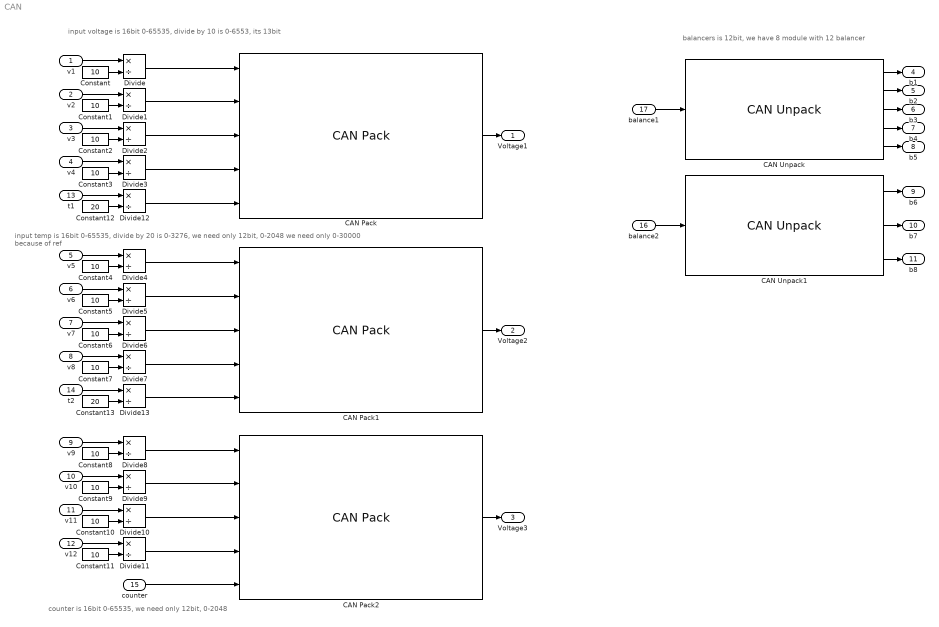
/*
 * File: CAN.c
 *
 * Code generated for Simulink model 'CAN'.
 *
 * Model version                  : 1.10
 * Simulink Coder version         : 9.3 (R2020a) 18-Nov-2019
 * C/C++ source code generated on : Tue Jan 10 13:24:14 2023
 *
 * Target selection: ert.tlc
 * Embedded hardware selection: Microchip->PIC18
 * Code generation objectives: Unspecified
 * Validation result: Not run
 */

#include "CAN.h"
#include "CAN_private.h"

/* Block signals (default storage) */
B_CAN_T CAN_B;

/* Block states (default storage) */
DW_CAN_T CAN_DW;

/* External inputs (root inport signals with default storage) */
ExtU_CAN_T CAN_U;

/* External outputs (root outports fed by signals with default storage) */
ExtY_CAN_T CAN_Y;

/* Real-time model */
RT_MODEL_CAN_T CAN_M_;
RT_MODEL_CAN_T *const CAN_M = &CAN_M_;

/* Model step function */
void CAN_step(void)
{
  /* Product: '<Root>/Divide' incorporates:
   *  Constant: '<Root>/Constant'
   *  Inport: '<Root>/v1'
   */
  CAN_B.Divide = CAN_U.v1 / 10U;

  /* Product: '<Root>/Divide1' incorporates:
   *  Constant: '<Root>/Constant1'
   *  Inport: '<Root>/v2'
   */
  CAN_B.Divide1 = CAN_U.v2 / 10U;

  /* Product: '<Root>/Divide2' incorporates:
   *  Constant: '<Root>/Constant2'
   *  Inport: '<Root>/v3'
   */
  CAN_B.Divide2 = CAN_U.v3 / 10U;

  /* Product: '<Root>/Divide3' incorporates:
   *  Constant: '<Root>/Constant3'
   *  Inport: '<Root>/v4'
   */
  CAN_B.Divide3 = CAN_U.v4 / 10U;

  /* Product: '<Root>/Divide12' incorporates:
   *  Constant: '<Root>/Constant12'
   *  Inport: '<Root>/t1'
   */
  CAN_B.Divide12 = CAN_U.t1 / 20U;

  /* S-Function (scanpack): '<Root>/CAN Pack' incorporates:
   *  Outport: '<Root>/Voltage1'
   */
  /* S-Function (scanpack): '<Root>/CAN Pack' */
  CAN_Y.Voltage1.ID = 0U;
  CAN_Y.Voltage1.Length = 8U;
  CAN_Y.Voltage1.Extended = 0U;
  CAN_Y.Voltage1.Remote = 0;
  CAN_Y.Voltage1.Data[0] = 0;
  CAN_Y.Voltage1.Data[1] = 0;
  CAN_Y.Voltage1.Data[2] = 0;
  CAN_Y.Voltage1.Data[3] = 0;
  CAN_Y.Voltage1.Data[4] = 0;
  CAN_Y.Voltage1.Data[5] = 0;
  CAN_Y.Voltage1.Data[6] = 0;
  CAN_Y.Voltage1.Data[7] = 0;

  {
    /* --------------- START Packing signal 0 ------------------
     *  startBit                = 0
     *  length                  = 13
     *  desiredSignalByteLayout = LITTLEENDIAN
     *  dataType                = UNSIGNED
     *  factor                  = 1.0
     *  offset                  = 0.0
     *  minimum                 = 0.0
     *  maximum                 = 0.0
     * -----------------------------------------------------------------------*/
    {
      uint32_T packingValue = 0;

      {
        uint32_T result = (uint32_T) (CAN_B.Divide);

        /* no scaling required */
        packingValue = result;
      }

      {
        uint16_T packedValue;
        if (packingValue > (uint16_T)(8191)) {
          packedValue = (uint16_T) 8191;
        } else {
          packedValue = (uint16_T) (packingValue);
        }

        {
          {
            CAN_Y.Voltage1.Data[0] = CAN_Y.Voltage1.Data[0] | (uint8_T)
              ((uint16_T)(packedValue & (uint16_T)0xFFU));
            CAN_Y.Voltage1.Data[1] = CAN_Y.Voltage1.Data[1] | (uint8_T)
              ((uint16_T)((uint16_T)(packedValue & (uint16_T)0x1F00U) >> 8));
          }
        }
      }
    }

    /* --------------- START Packing signal 1 ------------------
     *  startBit                = 13
     *  length                  = 13
     *  desiredSignalByteLayout = LITTLEENDIAN
     *  dataType                = UNSIGNED
     *  factor                  = 1.0
     *  offset                  = 0.0
     *  minimum                 = 0.0
     *  maximum                 = 0.0
     * -----------------------------------------------------------------------*/
    {
      uint32_T packingValue = 0;

      {
        uint32_T result = (uint32_T) (CAN_B.Divide1);

        /* no scaling required */
        packingValue = result;
      }

      {
        uint16_T packedValue;
        if (packingValue > (uint16_T)(8191)) {
          packedValue = (uint16_T) 8191;
        } else {
          packedValue = (uint16_T) (packingValue);
        }

        {
          {
            CAN_Y.Voltage1.Data[1] = CAN_Y.Voltage1.Data[1] | (uint8_T)
              ((uint16_T)((uint16_T)(packedValue & (uint16_T)0x7U) << 5));
            CAN_Y.Voltage1.Data[2] = CAN_Y.Voltage1.Data[2] | (uint8_T)
              ((uint16_T)((uint16_T)(packedValue & (uint16_T)0x7F8U) >> 3));
            CAN_Y.Voltage1.Data[3] = CAN_Y.Voltage1.Data[3] | (uint8_T)
              ((uint16_T)((uint16_T)(packedValue & (uint16_T)0x1800U) >> 11));
          }
        }
      }
    }

    /* --------------- START Packing signal 2 ------------------
     *  startBit                = 26
     *  length                  = 13
     *  desiredSignalByteLayout = LITTLEENDIAN
     *  dataType                = UNSIGNED
     *  factor                  = 1.0
     *  offset                  = 0.0
     *  minimum                 = 0.0
     *  maximum                 = 0.0
     * -----------------------------------------------------------------------*/
    {
      uint32_T packingValue = 0;

      {
        uint32_T result = (uint32_T) (CAN_B.Divide2);

        /* no scaling required */
        packingValue = result;
      }

      {
        uint16_T packedValue;
        if (packingValue > (uint16_T)(8191)) {
          packedValue = (uint16_T) 8191;
        } else {
          packedValue = (uint16_T) (packingValue);
        }

        {
          {
            CAN_Y.Voltage1.Data[3] = CAN_Y.Voltage1.Data[3] | (uint8_T)
              ((uint16_T)((uint16_T)(packedValue & (uint16_T)0x3FU) << 2));
            CAN_Y.Voltage1.Data[4] = CAN_Y.Voltage1.Data[4] | (uint8_T)
              ((uint16_T)((uint16_T)(packedValue & (uint16_T)0x1FC0U) >> 6));
          }
        }
      }
    }

    /* --------------- START Packing signal 3 ------------------
     *  startBit                = 39
     *  length                  = 13
     *  desiredSignalByteLayout = LITTLEENDIAN
     *  dataType                = UNSIGNED
     *  factor                  = 1.0
     *  offset                  = 0.0
     *  minimum                 = 0.0
     *  maximum                 = 0.0
     * -----------------------------------------------------------------------*/
    {
      uint32_T packingValue = 0;

      {
        uint32_T result = (uint32_T) (CAN_B.Divide3);

        /* no scaling required */
        packingValue = result;
      }

      {
        uint16_T packedValue;
        if (packingValue > (uint16_T)(8191)) {
          packedValue = (uint16_T) 8191;
        } else {
          packedValue = (uint16_T) (packingValue);
        }

        {
          {
            CAN_Y.Voltage1.Data[4] = CAN_Y.Voltage1.Data[4] | (uint8_T)
              ((uint16_T)((uint16_T)(packedValue & (uint16_T)0x1U) << 7));
            CAN_Y.Voltage1.Data[5] = CAN_Y.Voltage1.Data[5] | (uint8_T)
              ((uint16_T)((uint16_T)(packedValue & (uint16_T)0x1FEU) >> 1));
            CAN_Y.Voltage1.Data[6] = CAN_Y.Voltage1.Data[6] | (uint8_T)
              ((uint16_T)((uint16_T)(packedValue & (uint16_T)0x1E00U) >> 9));
          }
        }
      }
    }

    /* --------------- START Packing signal 4 ------------------
     *  startBit                = 52
     *  length                  = 12
     *  desiredSignalByteLayout = LITTLEENDIAN
     *  dataType                = UNSIGNED
     *  factor                  = 1.0
     *  offset                  = 0.0
     *  minimum                 = 0.0
     *  maximum                 = 0.0
     * -----------------------------------------------------------------------*/
    {
      uint32_T packingValue = 0;

      {
        uint32_T result = (uint32_T) (CAN_B.Divide12);

        /* no scaling required */
        packingValue = result;
      }

      {
        uint16_T packedValue;
        if (packingValue > (uint16_T)(4095)) {
          packedValue = (uint16_T) 4095;
        } else {
          packedValue = (uint16_T) (packingValue);
        }

        {
          {
            CAN_Y.Voltage1.Data[6] = CAN_Y.Voltage1.Data[6] | (uint8_T)
              ((uint16_T)((uint16_T)(packedValue & (uint16_T)0xFU) << 4));
            CAN_Y.Voltage1.Data[7] = CAN_Y.Voltage1.Data[7] | (uint8_T)
              ((uint16_T)((uint16_T)(packedValue & (uint16_T)0xFF0U) >> 4));
          }
        }
      }
    }
  }

  /* Product: '<Root>/Divide4' incorporates:
   *  Constant: '<Root>/Constant4'
   *  Inport: '<Root>/v5'
   */
  CAN_B.Divide4 = CAN_U.v5 / 10U;

  /* Product: '<Root>/Divide5' incorporates:
   *  Constant: '<Root>/Constant5'
   *  Inport: '<Root>/v6'
   */
  CAN_B.Divide5 = CAN_U.v6 / 10U;

  /* Product: '<Root>/Divide6' incorporates:
   *  Constant: '<Root>/Constant6'
   *  Inport: '<Root>/v7'
   */
  CAN_B.Divide6 = CAN_U.v7 / 10U;

  /* Product: '<Root>/Divide7' incorporates:
   *  Constant: '<Root>/Constant7'
   *  Inport: '<Root>/v8'
   */
  CAN_B.Divide7 = CAN_U.v8 / 10U;

  /* Product: '<Root>/Divide13' incorporates:
   *  Constant: '<Root>/Constant13'
   *  Inport: '<Root>/t2'
   */
  CAN_B.Divide13 = CAN_U.t2 / 20U;

  /* S-Function (scanpack): '<Root>/CAN Pack1' incorporates:
   *  Outport: '<Root>/Voltage2'
   */
  /* S-Function (scanpack): '<Root>/CAN Pack1' */
  CAN_Y.Voltage2.ID = 0U;
  CAN_Y.Voltage2.Length = 8U;
  CAN_Y.Voltage2.Extended = 0U;
  CAN_Y.Voltage2.Remote = 0;
  CAN_Y.Voltage2.Data[0] = 0;
  CAN_Y.Voltage2.Data[1] = 0;
  CAN_Y.Voltage2.Data[2] = 0;
  CAN_Y.Voltage2.Data[3] = 0;
  CAN_Y.Voltage2.Data[4] = 0;
  CAN_Y.Voltage2.Data[5] = 0;
  CAN_Y.Voltage2.Data[6] = 0;
  CAN_Y.Voltage2.Data[7] = 0;

  {
    /* --------------- START Packing signal 0 ------------------
     *  startBit                = 0
     *  length                  = 13
     *  desiredSignalByteLayout = LITTLEENDIAN
     *  dataType                = UNSIGNED
     *  factor                  = 1.0
     *  offset                  = 0.0
     *  minimum                 = 0.0
     *  maximum                 = 0.0
     * -----------------------------------------------------------------------*/
    {
      uint32_T packingValue = 0;

      {
        uint32_T result = (uint32_T) (CAN_B.Divide4);

        /* no scaling required */
        packingValue = result;
      }

      {
        uint16_T packedValue;
        if (packingValue > (uint16_T)(8191)) {
          packedValue = (uint16_T) 8191;
        } else {
          packedValue = (uint16_T) (packingValue);
        }

        {
          {
            CAN_Y.Voltage2.Data[0] = CAN_Y.Voltage2.Data[0] | (uint8_T)
              ((uint16_T)(packedValue & (uint16_T)0xFFU));
            CAN_Y.Voltage2.Data[1] = CAN_Y.Voltage2.Data[1] | (uint8_T)
              ((uint16_T)((uint16_T)(packedValue & (uint16_T)0x1F00U) >> 8));
          }
        }
      }
    }

    /* --------------- START Packing signal 1 ------------------
     *  startBit                = 13
     *  length                  = 13
     *  desiredSignalByteLayout = LITTLEENDIAN
     *  dataType                = UNSIGNED
     *  factor                  = 1.0
     *  offset                  = 0.0
     *  minimum                 = 0.0
     *  maximum                 = 0.0
     * -----------------------------------------------------------------------*/
    {
      uint32_T packingValue = 0;

      {
        uint32_T result = (uint32_T) (CAN_B.Divide5);

        /* no scaling required */
        packingValue = result;
      }

      {
        uint16_T packedValue;
        if (packingValue > (uint16_T)(8191)) {
          packedValue = (uint16_T) 8191;
        } else {
          packedValue = (uint16_T) (packingValue);
        }

        {
          {
            CAN_Y.Voltage2.Data[1] = CAN_Y.Voltage2.Data[1] | (uint8_T)
              ((uint16_T)((uint16_T)(packedValue & (uint16_T)0x7U) << 5));
            CAN_Y.Voltage2.Data[2] = CAN_Y.Voltage2.Data[2] | (uint8_T)
              ((uint16_T)((uint16_T)(packedValue & (uint16_T)0x7F8U) >> 3));
            CAN_Y.Voltage2.Data[3] = CAN_Y.Voltage2.Data[3] | (uint8_T)
              ((uint16_T)((uint16_T)(packedValue & (uint16_T)0x1800U) >> 11));
          }
        }
      }
    }

    /* --------------- START Packing signal 2 ------------------
     *  startBit                = 26
     *  length                  = 13
     *  desiredSignalByteLayout = LITTLEENDIAN
     *  dataType                = UNSIGNED
     *  factor                  = 1.0
     *  offset                  = 0.0
     *  minimum                 = 0.0
     *  maximum                 = 0.0
     * -----------------------------------------------------------------------*/
    {
      uint32_T packingValue = 0;

      {
        uint32_T result = (uint32_T) (CAN_B.Divide6);

        /* no scaling required */
        packingValue = result;
      }

      {
        uint16_T packedValue;
        if (packingValue > (uint16_T)(8191)) {
          packedValue = (uint16_T) 8191;
        } else {
          packedValue = (uint16_T) (packingValue);
        }

        {
          {
            CAN_Y.Voltage2.Data[3] = CAN_Y.Voltage2.Data[3] | (uint8_T)
              ((uint16_T)((uint16_T)(packedValue & (uint16_T)0x3FU) << 2));
            CAN_Y.Voltage2.Data[4] = CAN_Y.Voltage2.Data[4] | (uint8_T)
              ((uint16_T)((uint16_T)(packedValue & (uint16_T)0x1FC0U) >> 6));
          }
        }
      }
    }

    /* --------------- START Packing signal 3 ------------------
     *  startBit                = 39
     *  length                  = 13
     *  desiredSignalByteLayout = LITTLEENDIAN
     *  dataType                = UNSIGNED
     *  factor                  = 1.0
     *  offset                  = 0.0
     *  minimum                 = 0.0
     *  maximum                 = 0.0
     * -----------------------------------------------------------------------*/
    {
      uint32_T packingValue = 0;

      {
        uint32_T result = (uint32_T) (CAN_B.Divide7);

        /* no scaling required */
        packingValue = result;
      }

      {
        uint16_T packedValue;
        if (packingValue > (uint16_T)(8191)) {
          packedValue = (uint16_T) 8191;
        } else {
          packedValue = (uint16_T) (packingValue);
        }

        {
          {
            CAN_Y.Voltage2.Data[4] = CAN_Y.Voltage2.Data[4] | (uint8_T)
              ((uint16_T)((uint16_T)(packedValue & (uint16_T)0x1U) << 7));
            CAN_Y.Voltage2.Data[5] = CAN_Y.Voltage2.Data[5] | (uint8_T)
              ((uint16_T)((uint16_T)(packedValue & (uint16_T)0x1FEU) >> 1));
            CAN_Y.Voltage2.Data[6] = CAN_Y.Voltage2.Data[6] | (uint8_T)
              ((uint16_T)((uint16_T)(packedValue & (uint16_T)0x1E00U) >> 9));
          }
        }
      }
    }

    /* --------------- START Packing signal 4 ------------------
     *  startBit                = 52
     *  length                  = 12
     *  desiredSignalByteLayout = LITTLEENDIAN
     *  dataType                = UNSIGNED
     *  factor                  = 1.0
     *  offset                  = 0.0
     *  minimum                 = 0.0
     *  maximum                 = 0.0
     * -----------------------------------------------------------------------*/
    {
      uint32_T packingValue = 0;

      {
        uint32_T result = (uint32_T) (CAN_B.Divide13);

        /* no scaling required */
        packingValue = result;
      }

      {
        uint16_T packedValue;
        if (packingValue > (uint16_T)(4095)) {
          packedValue = (uint16_T) 4095;
        } else {
          packedValue = (uint16_T) (packingValue);
        }

        {
          {
            CAN_Y.Voltage2.Data[6] = CAN_Y.Voltage2.Data[6] | (uint8_T)
              ((uint16_T)((uint16_T)(packedValue & (uint16_T)0xFU) << 4));
            CAN_Y.Voltage2.Data[7] = CAN_Y.Voltage2.Data[7] | (uint8_T)
              ((uint16_T)((uint16_T)(packedValue & (uint16_T)0xFF0U) >> 4));
          }
        }
      }
    }
  }

  /* Product: '<Root>/Divide8' incorporates:
   *  Constant: '<Root>/Constant8'
   *  Inport: '<Root>/v9'
   */
  CAN_B.Divide8 = CAN_U.v9 / 10U;

  /* Product: '<Root>/Divide9' incorporates:
   *  Constant: '<Root>/Constant9'
   *  Inport: '<Root>/v10'
   */
  CAN_B.Divide9 = CAN_U.v10 / 10U;

  /* Product: '<Root>/Divide10' incorporates:
   *  Constant: '<Root>/Constant10'
   *  Inport: '<Root>/v11'
   */
  CAN_B.Divide10 = CAN_U.v11 / 10U;

  /* Product: '<Root>/Divide11' incorporates:
   *  Constant: '<Root>/Constant11'
   *  Inport: '<Root>/v12'
   */
  CAN_B.Divide11 = CAN_U.v12 / 10U;

  /* S-Function (scanpack): '<Root>/CAN Pack2' incorporates:
   *  Inport: '<Root>/counter'
   *  Outport: '<Root>/Voltage3'
   */
  /* S-Function (scanpack): '<Root>/CAN Pack2' */
  CAN_Y.Voltage3.ID = 0U;
  CAN_Y.Voltage3.Length = 8U;
  CAN_Y.Voltage3.Extended = 0U;
  CAN_Y.Voltage3.Remote = 0;
  CAN_Y.Voltage3.Data[0] = 0;
  CAN_Y.Voltage3.Data[1] = 0;
  CAN_Y.Voltage3.Data[2] = 0;
  CAN_Y.Voltage3.Data[3] = 0;
  CAN_Y.Voltage3.Data[4] = 0;
  CAN_Y.Voltage3.Data[5] = 0;
  CAN_Y.Voltage3.Data[6] = 0;
  CAN_Y.Voltage3.Data[7] = 0;

  {
    /* --------------- START Packing signal 0 ------------------
     *  startBit                = 0
     *  length                  = 13
     *  desiredSignalByteLayout = LITTLEENDIAN
     *  dataType                = UNSIGNED
     *  factor                  = 1.0
     *  offset                  = 0.0
     *  minimum                 = 0.0
     *  maximum                 = 0.0
     * -----------------------------------------------------------------------*/
    {
      uint32_T packingValue = 0;

      {
        uint32_T result = (uint32_T) (CAN_B.Divide8);

        /* no scaling required */
        packingValue = result;
      }

      {
        uint16_T packedValue;
        if (packingValue > (uint16_T)(8191)) {
          packedValue = (uint16_T) 8191;
        } else {
          packedValue = (uint16_T) (packingValue);
        }

        {
          {
            CAN_Y.Voltage3.Data[0] = CAN_Y.Voltage3.Data[0] | (uint8_T)
              ((uint16_T)(packedValue & (uint16_T)0xFFU));
            CAN_Y.Voltage3.Data[1] = CAN_Y.Voltage3.Data[1] | (uint8_T)
              ((uint16_T)((uint16_T)(packedValue & (uint16_T)0x1F00U) >> 8));
          }
        }
      }
    }

    /* --------------- START Packing signal 1 ------------------
     *  startBit                = 13
     *  length                  = 13
     *  desiredSignalByteLayout = LITTLEENDIAN
     *  dataType                = UNSIGNED
     *  factor                  = 1.0
     *  offset                  = 0.0
     *  minimum                 = 0.0
     *  maximum                 = 0.0
     * -----------------------------------------------------------------------*/
    {
      uint32_T packingValue = 0;

      {
        uint32_T result = (uint32_T) (CAN_B.Divide9);

        /* no scaling required */
        packingValue = result;
      }

      {
        uint16_T packedValue;
        if (packingValue > (uint16_T)(8191)) {
          packedValue = (uint16_T) 8191;
        } else {
          packedValue = (uint16_T) (packingValue);
        }

        {
          {
            CAN_Y.Voltage3.Data[1] = CAN_Y.Voltage3.Data[1] | (uint8_T)
              ((uint16_T)((uint16_T)(packedValue & (uint16_T)0x7U) << 5));
            CAN_Y.Voltage3.Data[2] = CAN_Y.Voltage3.Data[2] | (uint8_T)
              ((uint16_T)((uint16_T)(packedValue & (uint16_T)0x7F8U) >> 3));
            CAN_Y.Voltage3.Data[3] = CAN_Y.Voltage3.Data[3] | (uint8_T)
              ((uint16_T)((uint16_T)(packedValue & (uint16_T)0x1800U) >> 11));
          }
        }
      }
    }

    /* --------------- START Packing signal 2 ------------------
     *  startBit                = 26
     *  length                  = 13
     *  desiredSignalByteLayout = LITTLEENDIAN
     *  dataType                = UNSIGNED
     *  factor                  = 1.0
     *  offset                  = 0.0
     *  minimum                 = 0.0
     *  maximum                 = 0.0
     * -----------------------------------------------------------------------*/
    {
      uint32_T packingValue = 0;

      {
        uint32_T result = (uint32_T) (CAN_B.Divide10);

        /* no scaling required */
        packingValue = result;
      }

      {
        uint16_T packedValue;
        if (packingValue > (uint16_T)(8191)) {
          packedValue = (uint16_T) 8191;
        } else {
          packedValue = (uint16_T) (packingValue);
        }

        {
          {
            CAN_Y.Voltage3.Data[3] = CAN_Y.Voltage3.Data[3] | (uint8_T)
              ((uint16_T)((uint16_T)(packedValue & (uint16_T)0x3FU) << 2));
            CAN_Y.Voltage3.Data[4] = CAN_Y.Voltage3.Data[4] | (uint8_T)
              ((uint16_T)((uint16_T)(packedValue & (uint16_T)0x1FC0U) >> 6));
          }
        }
      }
    }

    /* --------------- START Packing signal 3 ------------------
     *  startBit                = 39
     *  length                  = 13
     *  desiredSignalByteLayout = LITTLEENDIAN
     *  dataType                = UNSIGNED
     *  factor                  = 1.0
     *  offset                  = 0.0
     *  minimum                 = 0.0
     *  maximum                 = 0.0
     * -----------------------------------------------------------------------*/
    {
      uint32_T packingValue = 0;

      {
        uint32_T result = (uint32_T) (CAN_B.Divide11);

        /* no scaling required */
        packingValue = result;
      }

      {
        uint16_T packedValue;
        if (packingValue > (uint16_T)(8191)) {
          packedValue = (uint16_T) 8191;
        } else {
          packedValue = (uint16_T) (packingValue);
        }

        {
          {
            CAN_Y.Voltage3.Data[4] = CAN_Y.Voltage3.Data[4] | (uint8_T)
              ((uint16_T)((uint16_T)(packedValue & (uint16_T)0x1U) << 7));
            CAN_Y.Voltage3.Data[5] = CAN_Y.Voltage3.Data[5] | (uint8_T)
              ((uint16_T)((uint16_T)(packedValue & (uint16_T)0x1FEU) >> 1));
            CAN_Y.Voltage3.Data[6] = CAN_Y.Voltage3.Data[6] | (uint8_T)
              ((uint16_T)((uint16_T)(packedValue & (uint16_T)0x1E00U) >> 9));
          }
        }
      }
    }

    /* --------------- START Packing signal 4 ------------------
     *  startBit                = 52
     *  length                  = 12
     *  desiredSignalByteLayout = LITTLEENDIAN
     *  dataType                = UNSIGNED
     *  factor                  = 1.0
     *  offset                  = 0.0
     *  minimum                 = 0.0
     *  maximum                 = 0.0
     * -----------------------------------------------------------------------*/
    {
      uint32_T packingValue = 0;

      {
        uint32_T result = (uint32_T) (CAN_U.counter);

        /* no scaling required */
        packingValue = result;
      }

      {
        uint16_T packedValue;
        if (packingValue > (uint16_T)(4095)) {
          packedValue = (uint16_T) 4095;
        } else {
          packedValue = (uint16_T) (packingValue);
        }

        {
          {
            CAN_Y.Voltage3.Data[6] = CAN_Y.Voltage3.Data[6] | (uint8_T)
              ((uint16_T)((uint16_T)(packedValue & (uint16_T)0xFU) << 4));
            CAN_Y.Voltage3.Data[7] = CAN_Y.Voltage3.Data[7] | (uint8_T)
              ((uint16_T)((uint16_T)(packedValue & (uint16_T)0xFF0U) >> 4));
          }
        }
      }
    }
  }

  /* S-Function (scanunpack): '<Root>/CAN Unpack' incorporates:
   *  Inport: '<Root>/balance1'
   *  Outport: '<Root>/b1'
   *  Outport: '<Root>/b2'
   *  Outport: '<Root>/b3'
   *  Outport: '<Root>/b4'
   *  Outport: '<Root>/b5'
   */
  {
    /* S-Function (scanunpack): '<Root>/CAN Unpack' */
    if ((8 == CAN_U.balance1.Length) && (CAN_U.balance1.ID != INVALID_CAN_ID) )
    {
      if ((1 == CAN_U.balance1.ID) && (0U == CAN_U.balance1.Extended) ) {
        {
          /* --------------- START Unpacking signal 0 ------------------
           *  startBit                = 0
           *  length                  = 12
           *  desiredSignalByteLayout = LITTLEENDIAN
           *  dataType                = UNSIGNED
           *  factor                  = 1.0
           *  offset                  = 0.0
           * -----------------------------------------------------------------------*/
          {
            uint16_T outValue = 0;

            {
              uint16_T unpackedValue = 0;

              {
                uint16_T tempValue = (uint16_T) (0);

                {
                  tempValue = tempValue | (uint16_T)(CAN_U.balance1.Data[0]);
                  tempValue = tempValue | (uint16_T)((uint16_T)((uint16_T)
                    (CAN_U.balance1.Data[1]) & (uint16_T)(0xFU)) << 8);
                }

                unpackedValue = tempValue;
              }

              outValue = (uint16_T) (unpackedValue);
            }

            {
              uint16_T result = (uint16_T) outValue;
              CAN_Y.b1 = result;
            }
          }

          /* --------------- START Unpacking signal 1 ------------------
           *  startBit                = 12
           *  length                  = 12
           *  desiredSignalByteLayout = LITTLEENDIAN
           *  dataType                = UNSIGNED
           *  factor                  = 1.0
           *  offset                  = 0.0
           * -----------------------------------------------------------------------*/
          {
            uint16_T outValue = 0;

            {
              uint16_T unpackedValue = 0;

              {
                uint16_T tempValue = (uint16_T) (0);

                {
                  tempValue = tempValue | (uint16_T)((uint16_T)((uint16_T)
                    (CAN_U.balance1.Data[1]) & (uint16_T)(0xF0U)) >> 4);
                  tempValue = tempValue | (uint16_T)((uint16_T)
                    (CAN_U.balance1.Data[2]) << 4);
                }

                unpackedValue = tempValue;
              }

              outValue = (uint16_T) (unpackedValue);
            }

            {
              uint16_T result = (uint16_T) outValue;
              CAN_Y.b2 = result;
            }
          }

          /* --------------- START Unpacking signal 2 ------------------
           *  startBit                = 24
           *  length                  = 12
           *  desiredSignalByteLayout = LITTLEENDIAN
           *  dataType                = UNSIGNED
           *  factor                  = 1.0
           *  offset                  = 0.0
           * -----------------------------------------------------------------------*/
          {
            uint16_T outValue = 0;

            {
              uint16_T unpackedValue = 0;

              {
                uint16_T tempValue = (uint16_T) (0);

                {
                  tempValue = tempValue | (uint16_T)(CAN_U.balance1.Data[3]);
                  tempValue = tempValue | (uint16_T)((uint16_T)((uint16_T)
                    (CAN_U.balance1.Data[4]) & (uint16_T)(0xFU)) << 8);
                }

                unpackedValue = tempValue;
              }

              outValue = (uint16_T) (unpackedValue);
            }

            {
              uint16_T result = (uint16_T) outValue;
              CAN_Y.b3 = result;
            }
          }

          /* --------------- START Unpacking signal 3 ------------------
           *  startBit                = 36
           *  length                  = 12
           *  desiredSignalByteLayout = LITTLEENDIAN
           *  dataType                = UNSIGNED
           *  factor                  = 1.0
           *  offset                  = 0.0
           * -----------------------------------------------------------------------*/
          {
            uint16_T outValue = 0;

            {
              uint16_T unpackedValue = 0;

              {
                uint16_T tempValue = (uint16_T) (0);

                {
                  tempValue = tempValue | (uint16_T)((uint16_T)((uint16_T)
                    (CAN_U.balance1.Data[4]) & (uint16_T)(0xF0U)) >> 4);
                  tempValue = tempValue | (uint16_T)((uint16_T)
                    (CAN_U.balance1.Data[5]) << 4);
                }

                unpackedValue = tempValue;
              }

              outValue = (uint16_T) (unpackedValue);
            }

            {
              uint16_T result = (uint16_T) outValue;
              CAN_Y.b4 = result;
            }
          }

          /* --------------- START Unpacking signal 4 ------------------
           *  startBit                = 48
           *  length                  = 12
           *  desiredSignalByteLayout = LITTLEENDIAN
           *  dataType                = UNSIGNED
           *  factor                  = 1.0
           *  offset                  = 0.0
           * -----------------------------------------------------------------------*/
          {
            uint16_T outValue = 0;

            {
              uint16_T unpackedValue = 0;

              {
                uint16_T tempValue = (uint16_T) (0);

                {
                  tempValue = tempValue | (uint16_T)(CAN_U.balance1.Data[6]);
                  tempValue = tempValue | (uint16_T)((uint16_T)((uint16_T)
                    (CAN_U.balance1.Data[7]) & (uint16_T)(0xFU)) << 8);
                }

                unpackedValue = tempValue;
              }

              outValue = (uint16_T) (unpackedValue);
            }

            {
              uint16_T result = (uint16_T) outValue;
              CAN_Y.b5 = result;
            }
          }
        }
      }
    }
  }

  /* S-Function (scanunpack): '<Root>/CAN Unpack1' incorporates:
   *  Inport: '<Root>/balance2'
   *  Outport: '<Root>/b6'
   *  Outport: '<Root>/b7'
   *  Outport: '<Root>/b8'
   */
  {
    /* S-Function (scanunpack): '<Root>/CAN Unpack1' */
    if ((8 == CAN_U.balance2.Length) && (CAN_U.balance2.ID != INVALID_CAN_ID) )
    {
      if ((2 == CAN_U.balance2.ID) && (0U == CAN_U.balance2.Extended) ) {
        {
          /* --------------- START Unpacking signal 0 ------------------
           *  startBit                = 0
           *  length                  = 12
           *  desiredSignalByteLayout = LITTLEENDIAN
           *  dataType                = UNSIGNED
           *  factor                  = 1.0
           *  offset                  = 0.0
           * -----------------------------------------------------------------------*/
          {
            uint16_T outValue = 0;

            {
              uint16_T unpackedValue = 0;

              {
                uint16_T tempValue = (uint16_T) (0);

                {
                  tempValue = tempValue | (uint16_T)(CAN_U.balance2.Data[0]);
                  tempValue = tempValue | (uint16_T)((uint16_T)((uint16_T)
                    (CAN_U.balance2.Data[1]) & (uint16_T)(0xFU)) << 8);
                }

                unpackedValue = tempValue;
              }

              outValue = (uint16_T) (unpackedValue);
            }

            {
              uint16_T result = (uint16_T) outValue;
              CAN_Y.b6 = result;
            }
          }

          /* --------------- START Unpacking signal 1 ------------------
           *  startBit                = 12
           *  length                  = 12
           *  desiredSignalByteLayout = LITTLEENDIAN
           *  dataType                = UNSIGNED
           *  factor                  = 1.0
           *  offset                  = 0.0
           * -----------------------------------------------------------------------*/
          {
            uint16_T outValue = 0;

            {
              uint16_T unpackedValue = 0;

              {
                uint16_T tempValue = (uint16_T) (0);

                {
                  tempValue = tempValue | (uint16_T)((uint16_T)((uint16_T)
                    (CAN_U.balance2.Data[1]) & (uint16_T)(0xF0U)) >> 4);
                  tempValue = tempValue | (uint16_T)((uint16_T)
                    (CAN_U.balance2.Data[2]) << 4);
                }

                unpackedValue = tempValue;
              }

              outValue = (uint16_T) (unpackedValue);
            }

            {
              uint16_T result = (uint16_T) outValue;
              CAN_Y.b7 = result;
            }
          }

          /* --------------- START Unpacking signal 2 ------------------
           *  startBit                = 24
           *  length                  = 12
           *  desiredSignalByteLayout = LITTLEENDIAN
           *  dataType                = UNSIGNED
           *  factor                  = 1.0
           *  offset                  = 0.0
           * -----------------------------------------------------------------------*/
          {
            uint16_T outValue = 0;

            {
              uint16_T unpackedValue = 0;

              {
                uint16_T tempValue = (uint16_T) (0);

                {
                  tempValue = tempValue | (uint16_T)(CAN_U.balance2.Data[3]);
                  tempValue = tempValue | (uint16_T)((uint16_T)((uint16_T)
                    (CAN_U.balance2.Data[4]) & (uint16_T)(0xFU)) << 8);
                }

                unpackedValue = tempValue;
              }

              outValue = (uint16_T) (unpackedValue);
            }

            {
              uint16_T result = (uint16_T) outValue;
              CAN_Y.b8 = result;
            }
          }
        }
      }
    }
  }
}
